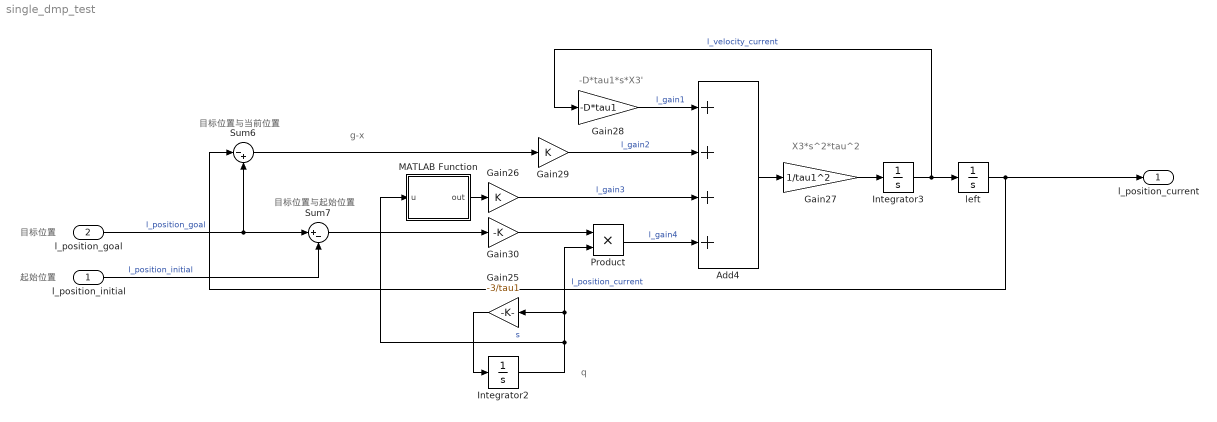
== matlab function single_dmp_test/MATLAB Function ==
function out = fcn(u, width_new, weight, cc_new)


% if(u>2.5)
%     y=1;
% elseif(u>=0&&u<=2.5)
%     y=0;
% else
%         y=-1;
% end


tem=exp(-width_new.*(u-cc_new).^2)';
y=(weight * tem * u) / sum(tem) ;

out = y;

//
// File: single_dmp_test.cpp
//
// Code generated for Simulink model 'single_dmp_test'.
//
// Model version                  : 1.6
// Simulink Coder version         : 9.4 (R2020b) 29-Jul-2020
// C/C++ source code generated on : Tue Dec 12 16:38:57 2023
//
// Target selection: ert.tlc
// Embedded hardware selection: Intel->x86-64 (Windows64)
// Code generation objectives:
//    1. Execution efficiency
//    2. RAM efficiency
// Validation result: Not run
//
#include "single_dmp_test.h"

// Private macros used by the generated code to access rtModel
#ifndef rtmIsMajorTimeStep
#define rtmIsMajorTimeStep(rtm)        (((rtm)->Timing.simTimeStep) == MAJOR_TIME_STEP)
#endif

#ifndef rtmIsMinorTimeStep
#define rtmIsMinorTimeStep(rtm)        (((rtm)->Timing.simTimeStep) == MINOR_TIME_STEP)
#endif

#ifndef rtmSetTPtr
#define rtmSetTPtr(rtm, val)           ((rtm)->Timing.t = (val))
#endif

// private model entry point functions
extern void single_dmp_test_derivatives(real_T arg_l_position_current[3], const
  real_T arg_l_position_initial[3], const real_T arg_l_position_goal[3]);

// This function updates continuous states using the ODE8 fixed-step
//  solver algorithm

void SignalDmp::rt_ertODEUpdateContinuousStates(RTWSolverInfo *si , real_T
  arg_l_position_current[3], const real_T arg_l_position_initial[3], const
  real_T arg_l_position_goal[3])
{
  // Solver Matrices
#define rtNSTAGES                      13

  static real_T rt_ODE8_B[13] = {
    4.174749114153025E-2, 0.0, 0.0, 0.0,
    0.0, -5.54523286112393E-2, 2.393128072011801E-1, 7.03510669403443E-1,
    -7.597596138144609E-1, 6.605630309222863E-1, 1.581874825101233E-1,
    -2.381095387528628E-1, 2.5E-1
  };

  static real_T rt_ODE8_C[13] = {
    0.0, 5.555555555555556E-2, 8.333333333333333E-2, 1.25E-1,
    3.125E-1, 3.75E-1, 1.475E-1, 4.65E-1,
    5.648654513822596E-1, 6.5E-1, 9.246562776405044E-1, 1.0, 1.0
  };

  static real_T rt_ODE8_A[13][13] = {
    // rt_ODE8_A[0][]
    { 0.0, 0.0, 0.0, 0.0,
      0.0, 0.0, 0.0, 0.0,
      0.0, 0.0, 0.0, 0.0, 0.0 },

    // rt_ODE8_A[1][]
    { 5.555555555555556E-2, 0.0, 0.0, 0.0,
      0.0, 0.0, 0.0, 0.0,
      0.0, 0.0, 0.0, 0.0, 0.0 },

    // rt_ODE8_A[2][]
    { 2.083333333333333E-2, 6.25E-2, 0.0, 0.0,
      0.0, 0.0, 0.0, 0.0,
      0.0, 0.0, 0.0, 0.0, 0.0 },

    // rt_ODE8_A[3][]
    { 3.125E-2, 0.0, 9.375E-2, 0.0,
      0.0, 0.0, 0.0, 0.0,
      0.0, 0.0, 0.0, 0.0, 0.0 },

    // rt_ODE8_A[4][]
    { 3.125E-1, 0.0, -1.171875, 1.171875,
      0.0, 0.0, 0.0, 0.0,
      0.0, 0.0, 0.0, 0.0, 0.0 },

    // rt_ODE8_A[5][]
    { 3.75E-2, 0.0, 0.0, 1.875E-1,
      1.5E-1, 0.0, 0.0, 0.0,
      0.0, 0.0, 0.0, 0.0, 0.0 },

    // rt_ODE8_A[6][]
    { 4.791013711111111E-2, 0.0, 0.0, 1.122487127777778E-1,
      -2.550567377777778E-2, 1.284682388888889E-2, 0.0, 0.0,
      0.0, 0.0, 0.0, 0.0, 0.0 },

    // rt_ODE8_A[7][]
    { 1.691798978729228E-2, 0.0, 0.0, 3.878482784860432E-1,
      3.597736985150033E-2, 1.969702142156661E-1, -1.727138523405018E-1, 0.0,
      0.0, 0.0, 0.0, 0.0, 0.0 },

    // rt_ODE8_A[8][]
    { 6.90957533591923E-2, 0.0, 0.0, -6.342479767288542E-1,
      -1.611975752246041E-1, 1.386503094588253E-1, 9.409286140357563E-1,
      2.11636326481944E-1,
      0.0, 0.0, 0.0, 0.0, 0.0 },

    // rt_ODE8_A[9][]
    { 1.835569968390454E-1, 0.0, 0.0, -2.468768084315592,
      -2.912868878163005E-1, -2.647302023311738E-2, 2.8478387641928,
      2.813873314698498E-1,
      1.237448998633147E-1, 0.0, 0.0, 0.0, 0.0 },

    // rt_ODE8_A[10][]
    { -1.215424817395888, 0.0, 0.0, 1.667260866594577E1,
      9.157418284168179E-1, -6.056605804357471, -1.600357359415618E1,
      1.484930308629766E1,
      -1.337157573528985E1, 5.134182648179638, 0.0, 0.0, 0.0 },

    // rt_ODE8_A[11][]
    { 2.588609164382643E-1, 0.0, 0.0, -4.774485785489205,
      -4.350930137770325E-1, -3.049483332072241, 5.577920039936099,
      6.155831589861039,
      -5.062104586736938, 2.193926173180679, 1.346279986593349E-1, 0.0, 0.0 },

    // rt_ODE8_A[12][]
    { 8.224275996265075E-1, 0.0, 0.0, -1.165867325727766E1,
      -7.576221166909362E-1, 7.139735881595818E-1, 1.207577498689006E1,
      -2.127659113920403,
      1.990166207048956, -2.342864715440405E-1, 1.758985777079423E-1, 0.0, 0.0 },
  };

  time_T t = rtsiGetT(si);
  time_T tnew = rtsiGetSolverStopTime(si);
  time_T h = rtsiGetStepSize(si);
  real_T *x = rtsiGetContStates(si);
  ODE8_IntgData *intgData = static_cast<ODE8_IntgData *>(rtsiGetSolverData(si));
  real_T *deltaY = intgData->deltaY;
  real_T *x0 = intgData->x0;
  real_T* f[rtNSTAGES];
  int idx,stagesIdx,statesIdx;
  double deltaX;
  int_T nXc = 7;
  rtsiSetSimTimeStep(si,MINOR_TIME_STEP);
  f[0] = intgData->f[0];
  f[1] = intgData->f[1];
  f[2] = intgData->f[2];
  f[3] = intgData->f[3];
  f[4] = intgData->f[4];
  f[5] = intgData->f[5];
  f[6] = intgData->f[6];
  f[7] = intgData->f[7];
  f[8] = intgData->f[8];
  f[9] = intgData->f[9];
  f[10] = intgData->f[10];
  f[11] = intgData->f[11];
  f[12] = intgData->f[12];

  // Save the state values at time t in y and x0
  (void) std::memset(deltaY, 0,
                     static_cast<uint_T>(nXc)*sizeof(real_T));
  (void) std::memcpy(x0, x,
                     nXc*sizeof(real_T));
  for (stagesIdx=0;stagesIdx<rtNSTAGES;stagesIdx++) {
    (void) std::memcpy(x, x0,
                       static_cast<uint_T>(nXc)*sizeof(real_T));
    for (statesIdx=0;statesIdx<nXc;statesIdx++) {
      deltaX = 0;
      for (idx=0;idx<stagesIdx;idx++) {
        deltaX = deltaX + h*rt_ODE8_A[stagesIdx][idx]*f[idx][statesIdx];
      }

      x[statesIdx] = x0[statesIdx] + deltaX;
    }

    if (stagesIdx==0) {
      rtsiSetdX(si, f[stagesIdx]);
      single_dmp_test_derivatives(arg_l_position_current, arg_l_position_initial,
        arg_l_position_goal);
    } else {
      (stagesIdx==rtNSTAGES-1)? rtsiSetT(si, tnew) : rtsiSetT(si, t + h*
        rt_ODE8_C[stagesIdx]);
      rtsiSetdX(si, f[stagesIdx]);
      this->step(arg_l_position_current, arg_l_position_initial,
                 arg_l_position_goal);
      single_dmp_test_derivatives(arg_l_position_current, arg_l_position_initial,
        arg_l_position_goal);
    }

    for (statesIdx=0;statesIdx<nXc;statesIdx++) {
      deltaY[statesIdx] = deltaY[statesIdx] + h*rt_ODE8_B[stagesIdx]*f[stagesIdx]
        [statesIdx];
    }
  }

  for (statesIdx=0;statesIdx<nXc;statesIdx++) {
    x[statesIdx] = x0[statesIdx] + deltaY[statesIdx];
  }

  rtsiSetSimTimeStep(si,MAJOR_TIME_STEP);
}

// Model step function
void SignalDmp::step(real_T arg_l_position_current[3], const real_T
                     arg_l_position_initial[3], const real_T
                     arg_l_position_goal[3])
{
  real_T tem[41];
  real_T tmp[3];
  real_T a;
  int32_T i;
  int32_T k;
  if (rtmIsMajorTimeStep((&rtM))) {
    // set solver stop time
    rtsiSetSolverStopTime(&(&rtM)->solverInfo,(((&rtM)->Timing.clockTick0+1)*
      (&rtM)->Timing.stepSize0));
  }                                    // end MajorTimeStep

  // Update absolute time of base rate at minor time step
  if (rtmIsMinorTimeStep((&rtM))) {
    (&rtM)->Timing.t[0] = rtsiGetT(&(&rtM)->solverInfo);
  }

  // Outport: '<Root>/l_position_current' incorporates:
  //   Integrator: '<Root>/left'

  arg_l_position_current[0] = rtX.left_CSTATE[0];

  // Integrator: '<Root>/Integrator3'
  rtDW.l_velocity_current[0] = rtX.Integrator3_CSTATE[0];

  // Outport: '<Root>/l_position_current' incorporates:
  //   Integrator: '<Root>/left'

  arg_l_position_current[1] = rtX.left_CSTATE[1];

  // Integrator: '<Root>/Integrator3'
  rtDW.l_velocity_current[1] = rtX.Integrator3_CSTATE[1];

  // Outport: '<Root>/l_position_current' incorporates:
  //   Integrator: '<Root>/left'

  arg_l_position_current[2] = rtX.left_CSTATE[2];

  // Integrator: '<Root>/Integrator3'
  rtDW.l_velocity_current[2] = rtX.Integrator3_CSTATE[2];

  // MATLAB Function: '<Root>/MATLAB Function' incorporates:
  //   Integrator: '<Root>/Integrator2'

  for (k = 0; k < 41; k++) {
    a = rtX.Integrator2_CSTATE - rtConstP.MATLABFunction_cc_new[k];
    tem[k] = std::exp(a * a * -rtConstP.MATLABFunction_width_new[k]);
  }

  a = tem[0];
  for (k = 0; k < 40; k++) {
    a += tem[k + 1];
  }

  for (k = 0; k < 3; k++) {
    tmp[k] = 0.0;
    for (i = 0; i < 41; i++) {
      tmp[k] += rtConstP.MATLABFunction_weight[3 * i + k] * tem[i];
    }

    // Gain: '<Root>/Gain27' incorporates:
    //   Gain: '<Root>/Gain26'
    //   Gain: '<Root>/Gain28'
    //   Gain: '<Root>/Gain29'
    //   Gain: '<Root>/Gain30'
    //   Inport: '<Root>/l_position_goal'
    //   Inport: '<Root>/l_position_initial'
    //   Integrator: '<Root>/Integrator2'
    //   Integrator: '<Root>/left'
    //   Product: '<Root>/Product'
    //   Sum: '<Root>/Add4'
    //   Sum: '<Root>/Sum6'
    //   Sum: '<Root>/Sum7'

    rtDW.Gain27[k] = ((((arg_l_position_goal[k] - rtX.left_CSTATE[k]) * 1050.0 +
                        -194.421 * rtDW.l_velocity_current[k]) + tmp[k] *
                       rtX.Integrator2_CSTATE / a * 1050.0) +
                      (arg_l_position_goal[k] - arg_l_position_initial[k]) *
                      -1050.0 * rtX.Integrator2_CSTATE) * 0.1111111111111111;
  }

  // End of MATLAB Function: '<Root>/MATLAB Function'

  // Gain: '<Root>/Gain25' incorporates:
  //   Integrator: '<Root>/Integrator2'

  rtDW.Gain25 = -rtX.Integrator2_CSTATE;
  if (rtmIsMajorTimeStep((&rtM))) {
    rt_ertODEUpdateContinuousStates(&(&rtM)->solverInfo, arg_l_position_current,
      arg_l_position_initial, arg_l_position_goal);

    // Update absolute time for base rate
    // The "clockTick0" counts the number of times the code of this task has
    //  been executed. The absolute time is the multiplication of "clockTick0"
    //  and "Timing.stepSize0". Size of "clockTick0" ensures timer will not
    //  overflow during the application lifespan selected.

    ++(&rtM)->Timing.clockTick0;
    (&rtM)->Timing.t[0] = rtsiGetSolverStopTime(&(&rtM)->solverInfo);

    {
      // Update absolute timer for sample time: [0.005s, 0.0s]
      // The "clockTick1" counts the number of times the code of this task has
      //  been executed. The resolution of this integer timer is 0.005, which is the step size
      //  of the task. Size of "clockTick1" ensures timer will not overflow during the
      //  application lifespan selected.

      (&rtM)->Timing.clockTick1++;
    }
  }                                    // end MajorTimeStep
}
